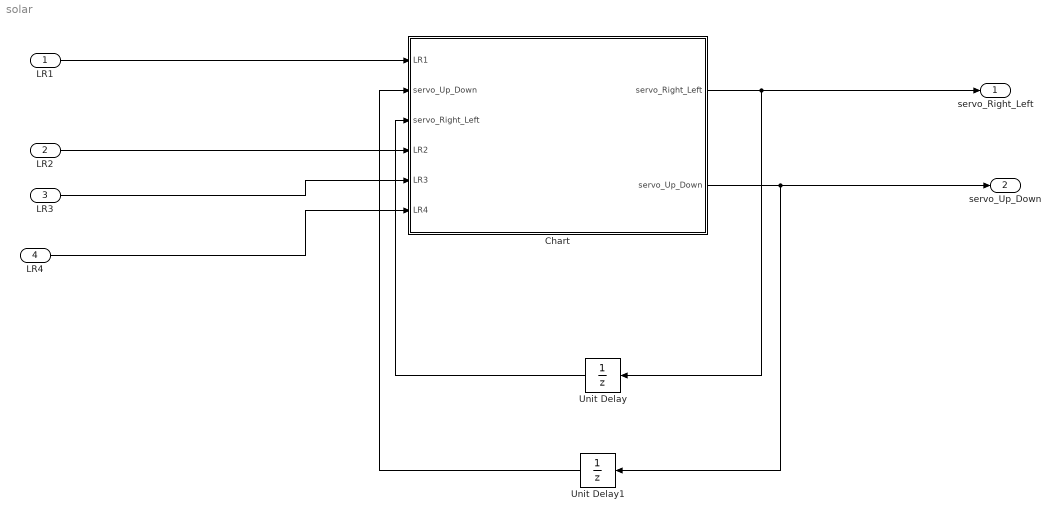
== stateflow chart solar/Chart ==
  state mode
    state mode_up
      (default) -> (junction 205) : {Servo_Angle(0);}
      (junction 205) -> (junction 204) : {Servo_Angle_up(90);}
    state mode_down
      (default) -> (junction 173) : {Servo_Angle(0);}
      (junction 173) -> (junction 198) : {Servo_Angle_up(-90);}
    state mode_Right
      (default) -> (junction 209) : {Servo_Angle(90);}
      (junction 209) -> (junction 208) : {Servo_Angle_up(0);}
    state mode_Left
      (default) -> (junction 213) : {Servo_Angle(-90);}
      (junction 213) -> (junction 212) : {Servo_Angle_up(0);}
    state mode_Right_Up
      (default) -> (junction 218) : {Servo_Angle(45);}
      (junction 218) -> (junction 217) : {Servo_Angle_up(45);}
    state mode_Right_Down
      (default) -> (junction 222) : {Servo_Angle(45);}
      (junction 222) -> (junction 221) : {Servo_Angle_up(-45);}
    state mode_Left_Down
      (default) -> (junction 228) : {Servo_Angle(-45);}
      (junction 228) -> (junction 227) : {Servo_Angle_up(-45);}
    state mode_Left_Up
      (default) -> (junction 232) : {Servo_Angle(-45);}
      (junction 232) -> (junction 231) : {Servo_Angle_up(45);}
    (default) -> mode_up
    mode -> mode_up [order 3] : [((LR1+LR2 )/2 >(LR3+LR4)/2) &&((LR1+LR4)/2 == (LR2+LR3)/2)]
    mode -> mode_down [order 2] : [((LR1+LR2 )/2 <(LR3+LR4)/2) &&((LR1+LR4)/2 == (LR2+LR3)/2)]
    mode -> mode_Right [order 8] : [((LR1+LR2 )/2 == (LR3+LR4)/2) &&((LR1+LR4)/2 < (LR2+LR3)/2)]
    mode -> mode_Left [order 7] : [((LR1+LR2 )/2 == (LR3+LR4)/2) &&((LR1+LR4)/2 > (LR2+LR3)/2)]
    mode -> mode_Right_Up [order 6] : [((LR1+LR2 )/2 >(LR3+LR4)/2) &&((LR1+LR4)/2 < (LR2+LR3)/2)]
    mode -> mode_Right_Down [order 5] : [((LR1+LR2 )/2  < (LR3+LR4)/2) &&((LR1+LR4)/2 < (LR2+LR3)/2)]
    mode -> mode_Left_Down [order 4] : [((LR1+LR2 )/2  < (LR3+LR4)/2) &&((LR1+LR4)/2 > (LR2+LR3)/2)]
    mode -> mode_Left_Up [order 1] : [((LR1+LR2 )/2 >(LR3+LR4)/2) &&((LR1+LR4)/2 > (LR2+LR3)/2)]
  state Servo_Angle_up(angle) [function]
    (default) -> (junction 181)
    (junction 181) -> (junction 184)
    (junction 184) -> (junction 186) [order 1] : [(servo_Up_Down >angle) && (servo_Up_Down~=angle)]
    (junction 184) -> (junction 175) [order 2]
    (junction 186) -> (junction 190) : {servo_Up_Down = servo_Up_Down - 1;}
    (junction 175) -> (junction 189) [order 1] : [(servo_Up_Down <angle) && (servo_Up_Down~=angle) ]
    (junction 175) -> (junction 191) [order 2]
    (junction 189) -> (junction 192) : {servo_Up_Down = servo_Up_Down + 1;}
    (junction 192) -> (junction 191)
    (junction 190) -> (junction 192)
    (junction 191) -> (junction 180)
  state Servo_Angle(angle) [function]
    (default) -> (junction 150)
    (junction 150) -> (junction 164)
    (junction 164) -> (junction 165) [order 1] : [(servo_Right_Left >angle) && (servo_Right_Left~=angle) ]
    (junction 164) -> (junction 166) [order 2]
    (junction 165) -> (junction 170) : {servo_Right_Left = servo_Right_Left - 1;}
    (junction 166) -> (junction 167) [order 1] : [(servo_Right_Left <angle) && (servo_Right_Left~=angle) ]
    (junction 166) -> (junction 168) [order 2]
    (junction 167) -> (junction 169) : {servo_Right_Left = servo_Right_Left + 1;}
    (junction 169) -> (junction 168)
    (junction 170) -> (junction 169)
    (junction 168) -> (junction 171)
  data: angle function_input; angle function_input; LR1 input; servo_Up_Down input; servo_Right_Left input; LR2 input; LR3 input; LR4 input; servo_Right_Left output; servo_Up_Down output

/*
 * File: solar.c
 *
 * Code generated for Simulink model 'solar'.
 *
 * Model version                  : 1.9
 * Simulink Coder version         : 9.8 (R2022b) 13-May-2022
 * C/C++ source code generated on : Thu Dec 21 02:12:43 2023
 *
 * Target selection: ert.tlc
 * Embedded hardware selection: Atmel->AVR
 * Code generation objectives:
 *    1. Execution efficiency
 *    2. RAM efficiency
 * Validation result: Not run
 */

#include "solar.h"
#include "rtwtypes.h"

/* Block signals and states (default storage) */
DW rtDW;

/* External inputs (root inport signals with default storage) */
ExtU rtU;

/* External outputs (root outports fed by signals with default storage) */
ExtY rtY;

/* Real-time model */
static RT_MODEL rtM_;
RT_MODEL *const rtM = &rtM_;

/* Forward declaration for local functions */
static void Servo_Angle(real_T angle);
static void Servo_Angle_up(real_T angle);

/* Function for Chart: '<Root>/Chart' */
static void Servo_Angle(real_T angle)
{
  /* Update for Outport: '<Root>/servo_Right_Left' */
  if ((rtY.servo_Right_Left > angle) && (rtY.servo_Right_Left != angle)) {
    rtY.servo_Right_Left--;
  } else if ((rtY.servo_Right_Left < angle) && (rtY.servo_Right_Left != angle))
  {
    rtY.servo_Right_Left++;
  }

  /* End of Update for Outport: '<Root>/servo_Right_Left' */
}

/* Function for Chart: '<Root>/Chart' */
static void Servo_Angle_up(real_T angle)
{
  /* Update for Outport: '<Root>/servo_Up_Down' */
  if ((rtY.servo_Up_Down > angle) && (rtY.servo_Up_Down != angle)) {
    rtY.servo_Up_Down--;
  } else if ((rtY.servo_Up_Down < angle) && (rtY.servo_Up_Down != angle)) {
    rtY.servo_Up_Down++;
  }

  /* End of Update for Outport: '<Root>/servo_Up_Down' */
}

/* Model step function */
void solar_step(void)
{
  real_T tmp;
  real_T tmp_0;
  boolean_T out;

  /* Outport: '<Root>/servo_Right_Left' incorporates:
   *  Chart: '<Root>/Chart'
   *  UnitDelay: '<Root>/Unit Delay'
   */
  rtY.servo_Right_Left = rtDW.UnitDelay_DSTATE;

  /* Outport: '<Root>/servo_Up_Down' incorporates:
   *  Chart: '<Root>/Chart'
   *  UnitDelay: '<Root>/Unit Delay1'
   */
  rtY.servo_Up_Down = rtDW.UnitDelay1_DSTATE;

  /* Chart: '<Root>/Chart' incorporates:
   *  Inport: '<Root>/LR1'
   *  Inport: '<Root>/LR2'
   *  Inport: '<Root>/LR3'
   *  Inport: '<Root>/LR4'
   */
  if (rtDW.is_active_c3_solar == 0U) {
    rtDW.is_active_c3_solar = 1U;
    Servo_Angle(0.0);
    Servo_Angle_up(90.0);
  } else {
    tmp = (rtU.LR1 + rtU.LR2) / 2.0;
    tmp_0 = (rtU.LR3 + rtU.LR4) / 2.0;
    if (tmp > tmp_0) {
      out = ((rtU.LR1 + rtU.LR4) / 2.0 > (rtU.LR2 + rtU.LR3) / 2.0);
    } else {
      out = false;
    }

    if (out) {
      Servo_Angle(-45.0);
      Servo_Angle_up(45.0);
    } else {
      if (tmp < tmp_0) {
        out = ((rtU.LR1 + rtU.LR4) / 2.0 == (rtU.LR2 + rtU.LR3) / 2.0);
      }

      if (out) {
        Servo_Angle(0.0);
        Servo_Angle_up(-90.0);
      } else {
        if (tmp > tmp_0) {
          out = ((rtU.LR1 + rtU.LR4) / 2.0 == (rtU.LR2 + rtU.LR3) / 2.0);
        }

        if (out) {
          Servo_Angle(0.0);
          Servo_Angle_up(90.0);
        } else {
          if (tmp < tmp_0) {
            out = ((rtU.LR1 + rtU.LR4) / 2.0 > (rtU.LR2 + rtU.LR3) / 2.0);
          }

          if (out) {
            Servo_Angle(-45.0);
            Servo_Angle_up(-45.0);
          } else {
            if (tmp < tmp_0) {
              out = ((rtU.LR1 + rtU.LR4) / 2.0 < (rtU.LR2 + rtU.LR3) / 2.0);
            }

            if (out) {
              Servo_Angle(45.0);
              Servo_Angle_up(-45.0);
            } else {
              if (tmp > tmp_0) {
                out = ((rtU.LR1 + rtU.LR4) / 2.0 < (rtU.LR2 + rtU.LR3) / 2.0);
              }

              if (out) {
                Servo_Angle(45.0);
                Servo_Angle_up(45.0);
              } else {
                if (tmp == tmp_0) {
                  out = ((rtU.LR1 + rtU.LR4) / 2.0 > (rtU.LR2 + rtU.LR3) / 2.0);
                }

                if (out) {
                  Servo_Angle(-90.0);
                  Servo_Angle_up(0.0);
                } else {
                  if (tmp == tmp_0) {
                    out = ((rtU.LR1 + rtU.LR4) / 2.0 < (rtU.LR2 + rtU.LR3) / 2.0);
                  }

                  if (out) {
                    Servo_Angle(90.0);
                    Servo_Angle_up(0.0);
                  }
                }
              }
            }
          }
        }
      }
    }
  }

  /* Update for UnitDelay: '<Root>/Unit Delay1' incorporates:
   *  Outport: '<Root>/servo_Up_Down'
   */
  rtDW.UnitDelay1_DSTATE = rtY.servo_Up_Down;

  /* Update for UnitDelay: '<Root>/Unit Delay' incorporates:
   *  Outport: '<Root>/servo_Right_Left'
   */
  rtDW.UnitDelay_DSTATE = rtY.servo_Right_Left;
}
